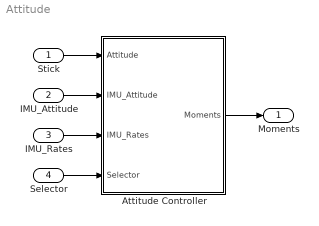
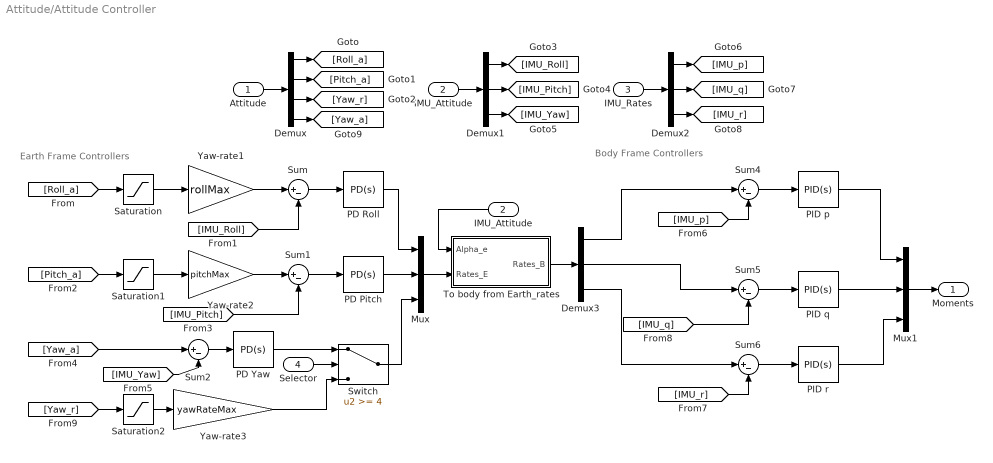
== matlab function Attitude/Attitude Controller/To body from Earth_rates ==
 function Rates_B = E(Alpha_e, Rates_E)
%#codegen
phi = Alpha_e(1);
theta = Alpha_e(2);

Sphi = sin(phi);
Cphi = cos(phi);
Stheta = sin(theta);
Ctheta = cos(theta);

E = [1      0        -Stheta   ;
     0     Cphi    Sphi*Ctheta ;
     0    -Sphi    Cphi*Ctheta];

Rates_B = E* Rates_E;

/*
 * Attitude.cpp
 *
 * Academic License - for use in teaching, academic research, and meeting
 * course requirements at degree granting institutions only.  Not for
 * government, commercial, or other organizational use.
 *
 * Code generation for model "Attitude".
 *
 * Model version              : 1.93
 * Simulink Coder version : 8.10 (R2016a) 10-Feb-2016
 * C++ source code generated on : Wed Aug 24 16:22:11 2016
 *
 * Target selection: grt.tlc
 * Note: GRT includes extra infrastructure and instrumentation for prototyping
 * Embedded hardware selection: ARM Compatible->ARM Cortex
 * Code generation objective: Execution efficiency
 * Validation result: Not run
 */

#include "Attitude.h"
#include "Attitude_private.h"

/*
 * This function updates continuous states using the ODE2 fixed-step
 * solver algorithm
 */
void AttitudeModelClass::rt_ertODEUpdateContinuousStates(RTWSolverInfo *si )
{
  time_T tnew = rtsiGetSolverStopTime(si);
  time_T h = rtsiGetStepSize(si);
  real_T *x = rtsiGetContStates(si);
  ODE2_IntgData *id = (ODE2_IntgData *)rtsiGetSolverData(si);
  real_T *y = id->y;
  real_T *f0 = id->f[0];
  real_T *f1 = id->f[1];
  real_T temp;
  int_T i;
  int_T nXc = 9;
  rtsiSetSimTimeStep(si,MINOR_TIME_STEP);

  /* Save the state values at time t in y, we'll use x as ynew. */
  (void) memcpy(y, x,
                (uint_T)nXc*sizeof(real_T));

  /* Assumes that rtsiSetT and ModelOutputs are up-to-date */
  /* f0 = f(t,y) */
  rtsiSetdX(si, f0);
  Attitude_derivatives();

  /* f1 = f(t + h, y + h*f0) */
  for (i = 0; i < nXc; i++) {
    x[i] = y[i] + (h*f0[i]);
  }

  rtsiSetT(si, tnew);
  rtsiSetdX(si, f1);
  this->step();
  Attitude_derivatives();

  /* tnew = t + h
     ynew = y + (h/2)*(f0 + f1) */
  temp = 0.5*h;
  for (i = 0; i < nXc; i++) {
    x[i] = y[i] + temp*(f0[i] + f1[i]);
  }

  rtsiSetSimTimeStep(si,MAJOR_TIME_STEP);
}

/* Model step function */
void AttitudeModelClass::step()
{
  real_T Sphi;
  real_T Cphi;
  real_T Ctheta;
  real_T rtb_Sum4;
  real_T rtb_ProportionalGain;
  real_T rtb_ProportionalGain_h;
  real_T rtb_Rates_B[3];
  real_T rtb_Sum6;
  real_T rtb_Saturate_l;
  real_T rtb_Sum_k;
  real_T tmp[9];
  int32_T i;
  if (rtmIsMajorTimeStep((&Attitude_M))) {
    /* set solver stop time */
    if (!((&Attitude_M)->Timing.clockTick0+1)) {
      rtsiSetSolverStopTime(&(&Attitude_M)->solverInfo, (((&Attitude_M)
        ->Timing.clockTickH0 + 1) * (&Attitude_M)->Timing.stepSize0 *
        4294967296.0));
    } else {
      rtsiSetSolverStopTime(&(&Attitude_M)->solverInfo, (((&Attitude_M)
        ->Timing.clockTick0 + 1) * (&Attitude_M)->Timing.stepSize0 +
        (&Attitude_M)->Timing.clockTickH0 * (&Attitude_M)->Timing.stepSize0 *
        4294967296.0));
    }
  }                                    /* end MajorTimeStep */

  /* Update absolute time of base rate at minor time step */
  if (rtmIsMinorTimeStep((&Attitude_M))) {
    (&Attitude_M)->Timing.t[0] = rtsiGetT(&(&Attitude_M)->solverInfo);
  }

  /* Saturate: '<S1>/Saturation' incorporates:
   *  Inport: '<Root>/Stick'
   */
  if (Attitude_U.Stick[0] > Attitude_P.Saturation_UpperSat) {
    rtb_Sum4 = Attitude_P.Saturation_UpperSat;
  } else if (Attitude_U.Stick[0] < Attitude_P.Saturation_LowerSat) {
    rtb_Sum4 = Attitude_P.Saturation_LowerSat;
  } else {
    rtb_Sum4 = Attitude_U.Stick[0];
  }

  /* Sum: '<S1>/Sum' incorporates:
   *  Gain: '<S1>/Yaw-rate1'
   *  Inport: '<Root>/IMU_Attitude'
   *  Saturate: '<S1>/Saturation'
   */
  rtb_Sum4 = Attitude_P.rollMax * rtb_Sum4 - Attitude_U.IMU_Attitude[0];

  /* Gain: '<S3>/Proportional Gain' */
  rtb_ProportionalGain = Attitude_P.KRP * rtb_Sum4;

  /* Gain: '<S3>/Filter Coefficient' incorporates:
   *  Gain: '<S3>/Derivative Gain'
   *  Integrator: '<S3>/Filter'
   *  Sum: '<S3>/SumD'
   */
  Attitude_B.FilterCoefficient = (Attitude_P.KRD * rtb_Sum4 -
    Attitude_X.Filter_CSTATE) * Attitude_P.N;

  /* Saturate: '<S1>/Saturation1' incorporates:
   *  Inport: '<Root>/Stick'
   */
  if (Attitude_U.Stick[1] > Attitude_P.Saturation1_UpperSat) {
    rtb_Sum4 = Attitude_P.Saturation1_UpperSat;
  } else if (Attitude_U.Stick[1] < Attitude_P.Saturation1_LowerSat) {
    rtb_Sum4 = Attitude_P.Saturation1_LowerSat;
  } else {
    rtb_Sum4 = Attitude_U.Stick[1];
  }

  /* Sum: '<S1>/Sum1' incorporates:
   *  Gain: '<S1>/Yaw-rate2'
   *  Inport: '<Root>/IMU_Attitude'
   *  Saturate: '<S1>/Saturation1'
   */
  rtb_Sum4 = Attitude_P.pitchMax * rtb_Sum4 - Attitude_U.IMU_Attitude[1];

  /* Gain: '<S2>/Proportional Gain' */
  rtb_ProportionalGain_h = Attitude_P.KPP * rtb_Sum4;

  /* Gain: '<S2>/Filter Coefficient' incorporates:
   *  Gain: '<S2>/Derivative Gain'
   *  Integrator: '<S2>/Filter'
   *  Sum: '<S2>/SumD'
   */
  Attitude_B.FilterCoefficient_e = (Attitude_P.KPD * rtb_Sum4 -
    Attitude_X.Filter_CSTATE_m) * Attitude_P.N;

  /* Sum: '<S1>/Sum2' incorporates:
   *  Inport: '<Root>/IMU_Attitude'
   *  Inport: '<Root>/Stick'
   */
  rtb_Sum4 = Attitude_U.Stick[3] - Attitude_U.IMU_Attitude[2];

  /* Gain: '<S4>/Filter Coefficient' incorporates:
   *  Gain: '<S4>/Derivative Gain'
   *  Integrator: '<S4>/Filter'
   *  Sum: '<S4>/SumD'
   */
  Attitude_B.FilterCoefficient_d = (Attitude_P.KYD * rtb_Sum4 -
    Attitude_X.Filter_CSTATE_mi) * Attitude_P.N;

  /* Switch: '<S1>/Switch' incorporates:
   *  Gain: '<S1>/Yaw-rate3'
   *  Gain: '<S4>/Proportional Gain'
   *  Inport: '<Root>/Selector'
   *  Inport: '<Root>/Stick'
   *  Saturate: '<S1>/Saturation2'
   *  Sum: '<S4>/Sum'
   */
  if (Attitude_U.Selector >= Attitude_P.Switch_Threshold) {
    rtb_Sum4 = Attitude_P.KYP * rtb_Sum4 + Attitude_B.FilterCoefficient_d;
  } else {
    if (Attitude_U.Stick[2] > Attitude_P.Saturation2_UpperSat) {
      /* Saturate: '<S1>/Saturation2' */
      rtb_Sum4 = Attitude_P.Saturation2_UpperSat;
    } else if (Attitude_U.Stick[2] < Attitude_P.Saturation2_LowerSat) {
      /* Saturate: '<S1>/Saturation2' */
      rtb_Sum4 = Attitude_P.Saturation2_LowerSat;
    } else {
      /* Saturate: '<S1>/Saturation2' incorporates:
       *  Inport: '<Root>/Stick'
       */
      rtb_Sum4 = Attitude_U.Stick[2];
    }

    rtb_Sum4 *= Attitude_P.yawRateMax;
  }

  /* End of Switch: '<S1>/Switch' */

  /* MATLAB Function: '<S1>/To body from Earth_rates' incorporates:
   *  Inport: '<Root>/IMU_Attitude'
   */
  /* MATLAB Function 'Attitude Controller/To body from Earth_rates': '<S8>:1' */
  /* '<S8>:1:3' */
  /* '<S8>:1:4' */
  /* '<S8>:1:6' */
  Sphi = sin(Attitude_U.IMU_Attitude[0]);

  /* '<S8>:1:7' */
  Cphi = cos(Attitude_U.IMU_Attitude[0]);

  /* '<S8>:1:8' */
  /* '<S8>:1:9' */
  Ctheta = cos(Attitude_U.IMU_Attitude[1]);

  /* '<S8>:1:11' */
  /* '<S8>:1:15' */
  tmp[0] = 1.0;
  tmp[3] = 0.0;
  tmp[6] = -sin(Attitude_U.IMU_Attitude[1]);
  tmp[1] = 0.0;
  tmp[4] = Cphi;
  tmp[7] = Sphi * Ctheta;
  tmp[2] = 0.0;
  tmp[5] = -Sphi;
  tmp[8] = Cphi * Ctheta;

  /* SignalConversion: '<S8>/TmpSignal ConversionAt SFunction Inport2' incorporates:
   *  MATLAB Function: '<S1>/To body from Earth_rates'
   *  Sum: '<S2>/Sum'
   *  Sum: '<S3>/Sum'
   */
  rtb_ProportionalGain += Attitude_B.FilterCoefficient;
  rtb_ProportionalGain_h += Attitude_B.FilterCoefficient_e;

  /* MATLAB Function: '<S1>/To body from Earth_rates' incorporates:
   *  SignalConversion: '<S8>/TmpSignal ConversionAt SFunction Inport2'
   */
  for (i = 0; i < 3; i++) {
    rtb_Rates_B[i] = tmp[i + 6] * rtb_Sum4 + (tmp[i + 3] *
      rtb_ProportionalGain_h + tmp[i] * rtb_ProportionalGain);
  }

  /* Sum: '<S1>/Sum4' incorporates:
   *  Inport: '<Root>/IMU_Rates'
   */
  rtb_Sum4 = rtb_Rates_B[0] - Attitude_U.IMU_Rates[0];

  /* Gain: '<S5>/Filter Coefficient' incorporates:
   *  Gain: '<S5>/Derivative Gain'
   *  Integrator: '<S5>/Filter'
   *  Sum: '<S5>/SumD'
   */
  Attitude_B.FilterCoefficient_o = (Attitude_P.Kdp * rtb_Sum4 -
    Attitude_X.Filter_CSTATE_k) * Attitude_P.N;

  /* Sum: '<S5>/Sum' incorporates:
   *  Gain: '<S5>/Proportional Gain'
   *  Integrator: '<S5>/Integrator'
   */
  rtb_ProportionalGain = (Attitude_P.Kpp * rtb_Sum4 +
    Attitude_X.Integrator_CSTATE) + Attitude_B.FilterCoefficient_o;

  /* Saturate: '<S5>/Saturate' */
  if (rtb_ProportionalGain > Attitude_P.satp) {
    rtb_ProportionalGain_h = Attitude_P.satp;
  } else if (rtb_ProportionalGain < -Attitude_P.satp) {
    rtb_ProportionalGain_h = -Attitude_P.satp;
  } else {
    rtb_ProportionalGain_h = rtb_ProportionalGain;
  }

  /* End of Saturate: '<S5>/Saturate' */

  /* Sum: '<S1>/Sum5' incorporates:
   *  Inport: '<Root>/IMU_Rates'
   */
  Sphi = rtb_Rates_B[1] - Attitude_U.IMU_Rates[1];

  /* Gain: '<S6>/Filter Coefficient' incorporates:
   *  Gain: '<S6>/Derivative Gain'
   *  Integrator: '<S6>/Filter'
   *  Sum: '<S6>/SumD'
   */
  Attitude_B.FilterCoefficient_b = (Attitude_P.Kdq * Sphi -
    Attitude_X.Filter_CSTATE_e) * Attitude_P.N;

  /* Sum: '<S6>/Sum' incorporates:
   *  Gain: '<S6>/Proportional Gain'
   *  Integrator: '<S6>/Integrator'
   */
  Cphi = (Attitude_P.Kpq * Sphi + Attitude_X.Integrator_CSTATE_f) +
    Attitude_B.FilterCoefficient_b;

  /* Saturate: '<S6>/Saturate' */
  if (Cphi > Attitude_P.satq) {
    Ctheta = Attitude_P.satq;
  } else if (Cphi < -Attitude_P.satq) {
    Ctheta = -Attitude_P.satq;
  } else {
    Ctheta = Cphi;
  }

  /* End of Saturate: '<S6>/Saturate' */

  /* Sum: '<S1>/Sum6' incorporates:
   *  Inport: '<Root>/IMU_Rates'
   */
  rtb_Sum6 = rtb_Rates_B[2] - Attitude_U.IMU_Rates[2];

  /* Gain: '<S7>/Filter Coefficient' incorporates:
   *  Gain: '<S7>/Derivative Gain'
   *  Integrator: '<S7>/Filter'
   *  Sum: '<S7>/SumD'
   */
  Attitude_B.FilterCoefficient_oo = (Attitude_P.Kdr * rtb_Sum6 -
    Attitude_X.Filter_CSTATE_g) * Attitude_P.N;

  /* Sum: '<S7>/Sum' incorporates:
   *  Gain: '<S7>/Proportional Gain'
   *  Integrator: '<S7>/Integrator'
   */
  rtb_Sum_k = (Attitude_P.Kpr * rtb_Sum6 + Attitude_X.Integrator_CSTATE_h) +
    Attitude_B.FilterCoefficient_oo;

  /* Saturate: '<S7>/Saturate' */
  if (rtb_Sum_k > Attitude_P.satr) {
    rtb_Saturate_l = Attitude_P.satr;
  } else if (rtb_Sum_k < -Attitude_P.satr) {
    rtb_Saturate_l = -Attitude_P.satr;
  } else {
    rtb_Saturate_l = rtb_Sum_k;
  }

  /* End of Saturate: '<S7>/Saturate' */

  /* Outport: '<Root>/Moments' */
  Attitude_Y.Moments[0] = rtb_ProportionalGain_h;
  Attitude_Y.Moments[1] = Ctheta;
  Attitude_Y.Moments[2] = rtb_Saturate_l;

  /* Sum: '<S5>/SumI1' incorporates:
   *  Gain: '<S5>/Integral Gain'
   *  Gain: '<S5>/Kb'
   *  Sum: '<S5>/SumI2'
   */
  Attitude_B.SumI1 = (rtb_ProportionalGain_h - rtb_ProportionalGain) *
    Attitude_P.Kbp + Attitude_P.Kip * rtb_Sum4;

  /* Sum: '<S6>/SumI1' incorporates:
   *  Gain: '<S6>/Integral Gain'
   *  Gain: '<S6>/Kb'
   *  Sum: '<S6>/SumI2'
   */
  Attitude_B.SumI1_e = (Ctheta - Cphi) * Attitude_P.Kbq + Attitude_P.Kiq * Sphi;

  /* Sum: '<S7>/SumI1' incorporates:
   *  Gain: '<S7>/Integral Gain'
   *  Gain: '<S7>/Kb'
   *  Sum: '<S7>/SumI2'
   */
  Attitude_B.SumI1_k = (rtb_Saturate_l - rtb_Sum_k) * Attitude_P.Kbr +
    Attitude_P.Kir * rtb_Sum6;
  if (rtmIsMajorTimeStep((&Attitude_M))) {
    rt_ertODEUpdateContinuousStates(&(&Attitude_M)->solverInfo);

    /* Update absolute time for base rate */
    /* The "clockTick0" counts the number of times the code of this task has
     * been executed. The absolute time is the multiplication of "clockTick0"
     * and "Timing.stepSize0". Size of "clockTick0" ensures timer will not
     * overflow during the application lifespan selected.
     * Timer of this task consists of two 32 bit unsigned integers.
     * The two integers represent the low bits Timing.clockTick0 and the high bits
     * Timing.clockTickH0. When the low bit overflows to 0, the high bits increment.
     */
    if (!(++(&Attitude_M)->Timing.clockTick0)) {
      ++(&Attitude_M)->Timing.clockTickH0;
    }

    (&Attitude_M)->Timing.t[0] = rtsiGetSolverStopTime(&(&Attitude_M)
      ->solverInfo);

    {
      /* Update absolute timer for sample time: [0.01s, 0.0s] */
      /* The "clockTick1" counts the number of times the code of this task has
       * been executed. The resolution of this integer timer is 0.01, which is the step size
       * of the task. Size of "clockTick1" ensures timer will not overflow during the
       * application lifespan selected.
       * Timer of this task consists of two 32 bit unsigned integers.
       * The two integers represent the low bits Timing.clockTick1 and the high bits
       * Timing.clockTickH1. When the low bit overflows to 0, the high bits increment.
       */
      (&Attitude_M)->Timing.clockTick1++;
      if (!(&Attitude_M)->Timing.clockTick1) {
        (&Attitude_M)->Timing.clockTickH1++;
      }
    }
  }                                    /* end MajorTimeStep */
}
